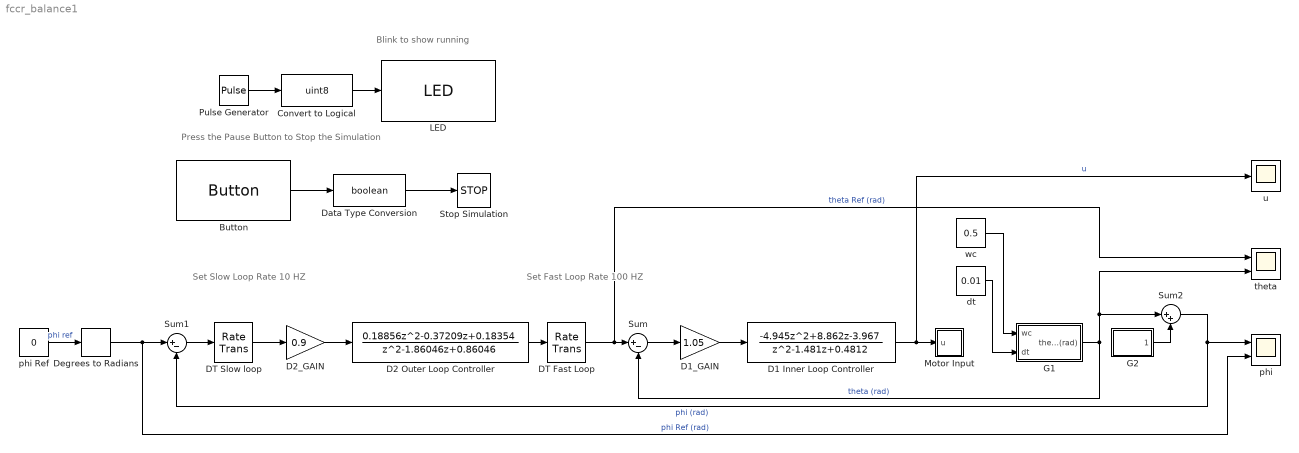
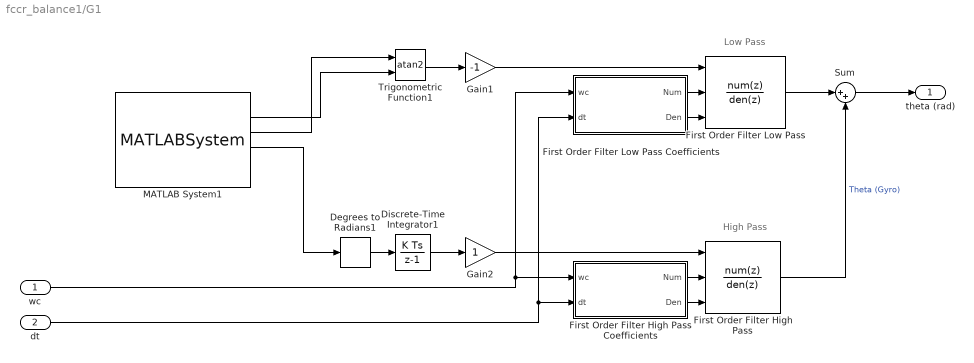
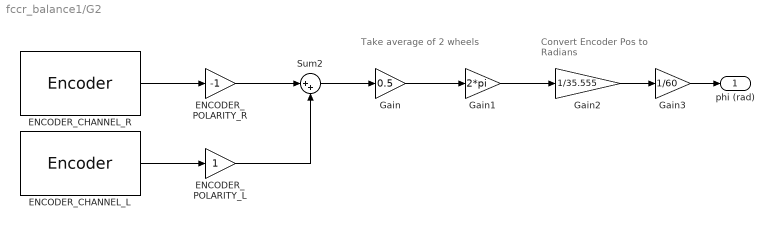
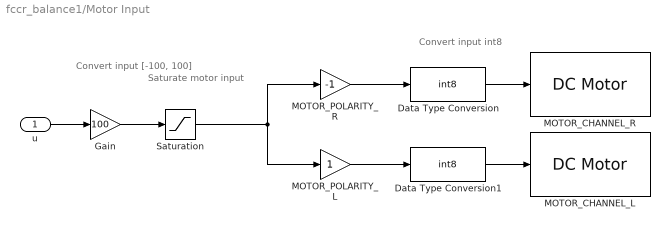
== matlab function fccr_balance1/G1/First Order Filter
High Pass Coefficients ==
function [Num, Den] = first_order_hp(wc,dt)
%#codegen
Num = [1 -1];
Den = [1 (wc*dt - 1)];

== matlab function fccr_balance1/G1/First Order Filter
Low Pass Coefficients ==
function [Num, Den] = first_order_lp(wc,dt)
%#codegen
Num = [0 wc*dt];
Den = [1 (wc*dt - 1)];

/*
 * fccr_balance1.c
 *
 * Academic License - for use in teaching, academic research, and meeting
 * course requirements at degree granting institutions only.  Not for
 * government, commercial, or other organizational use.
 *
 * Code generation for model "fccr_balance1".
 *
 * Model version              : 1.180
 * Simulink Coder version : 8.13 (R2017b) 24-Jul-2017
 * C source code generated on : Wed Nov 29 15:22:42 2017
 *
 * Target selection: ert.tlc
 * Note: GRT includes extra infrastructure and instrumentation for prototyping
 * Embedded hardware selection: ARM Compatible->ARM Cortex
 * Code generation objectives: Unspecified
 * Validation result: Not run
 */

#include "fccr_balance1.h"
#include "fccr_balance1_private.h"
#include "fccr_balance1_dt.h"

/* Block signals (auto storage) */
B_fccr_balance1_T fccr_balance1_B;

/* Block states (auto storage) */
DW_fccr_balance1_T fccr_balance1_DW;

/* Real-time model */
RT_MODEL_fccr_balance1_T fccr_balance1_M_;
RT_MODEL_fccr_balance1_T *const fccr_balance1_M = &fccr_balance1_M_;
static void rate_monotonic_scheduler(void);
real_T sMultiWord2Double(const uint32_T u1[], int32_T n1, int32_T e1)
{
  real_T y;
  int32_T i;
  int32_T exp_0;
  uint32_T u1i;
  uint32_T cb;
  y = 0.0;
  exp_0 = e1;
  if ((u1[n1 - 1] & 2147483648U) != 0U) {
    cb = 1U;
    for (i = 0; i < n1; i++) {
      u1i = ~u1[i];
      cb += u1i;
      y -= ldexp(cb, exp_0);
      cb = (uint32_T)(cb < u1i);
      exp_0 += 32;
    }
  } else {
    for (i = 0; i < n1; i++) {
      y += ldexp(u1[i], exp_0);
      exp_0 += 32;
    }
  }

  return y;
}

void MultiWordAdd(const uint32_T u1[], const uint32_T u2[], uint32_T y[],
                  int32_T n)
{
  uint32_T yi;
  uint32_T u1i;
  uint32_T carry = 0U;
  int32_T i;
  for (i = 0; i < n; i++) {
    u1i = u1[i];
    yi = (u1i + u2[i]) + carry;
    y[i] = yi;
    carry = carry != 0U ? (uint32_T)(yi <= u1i) : (uint32_T)(yi < u1i);
  }
}

void sMultiWordShr(const uint32_T u1[], int32_T n1, uint32_T n2, uint32_T y[],
                   int32_T n)
{
  int32_T nb;
  int32_T i;
  uint32_T ys;
  uint32_T yi;
  uint32_T u1i;
  int32_T nc;
  uint32_T nr;
  uint32_T nl;
  int32_T i1;
  nb = (int32_T)(n2 >> 5);
  i = 0;
  ys = (u1[n1 - 1] & 2147483648U) != 0U ? MAX_uint32_T : 0U;
  if (nb < n1) {
    nc = n + nb;
    if (nc > n1) {
      nc = n1;
    }

    nr = n2 - ((uint32_T)nb << 5);
    if (nr > 0U) {
      nl = 32U - nr;
      u1i = u1[nb];
      for (i1 = nb + 1; i1 < nc; i1++) {
        yi = u1i >> nr;
        u1i = u1[i1];
        y[i] = u1i << nl | yi;
        i++;
      }

      yi = u1i >> nr;
      u1i = nc < n1 ? u1[nc] : ys;
      y[i] = u1i << nl | yi;
      i++;
    } else {
      for (i1 = nb; i1 < nc; i1++) {
        y[i] = u1[i1];
        i++;
      }
    }
  }

  while (i < n) {
    y[i] = ys;
    i++;
  }
}

void sMultiWordMul(const uint32_T u1[], int32_T n1, const uint32_T u2[], int32_T
                   n2, uint32_T y[], int32_T n)
{
  int32_T i;
  int32_T j;
  int32_T k;
  int32_T nj;
  uint32_T u1i;
  uint32_T yk;
  uint32_T a1;
  uint32_T a0;
  uint32_T b1;
  uint32_T w10;
  uint32_T w01;
  uint32_T cb;
  boolean_T isNegative1;
  boolean_T isNegative2;
  uint32_T cb1;
  uint32_T cb2;
  isNegative1 = ((u1[n1 - 1] & 2147483648U) != 0U);
  isNegative2 = ((u2[n2 - 1] & 2147483648U) != 0U);
  cb1 = 1U;

  /* Initialize output to zero */
  for (k = 0; k < n; k++) {
    y[k] = 0U;
  }

  for (i = 0; i < n1; i++) {
    cb = 0U;
    u1i = u1[i];
    if (isNegative1) {
      u1i = ~u1i + cb1;
      cb1 = (uint32_T)(u1i < cb1);
    }

    a1 = u1i >> 16U;
    a0 = u1i & 65535U;
    cb2 = 1U;
    k = n - i;
    nj = n2 <= k ? n2 : k;
    k = i;
    for (j = 0; j < nj; j++) {
      yk = y[k];
      u1i = u2[j];
      if (isNegative2) {
        u1i = ~u1i + cb2;
        cb2 = (uint32_T)(u1i < cb2);
      }

      b1 = u1i >> 16U;
      u1i &= 65535U;
      w10 = a1 * u1i;
      w01 = a0 * b1;
      yk += cb;
      cb = (uint32_T)(yk < cb);
      u1i *= a0;
      yk += u1i;
      cb += (yk < u1i);
      u1i = w10 << 16U;
      yk += u1i;
      cb += (yk < u1i);
      u1i = w01 << 16U;
      yk += u1i;
      cb += (yk < u1i);
      y[k] = yk;
      cb += w10 >> 16U;
      cb += w01 >> 16U;
      cb += a1 * b1;
      k++;
    }

    if (k < n) {
      y[k] = cb;
    }
  }

  /* Apply sign */
  if (isNegative1 != isNegative2) {
    cb = 1U;
    for (k = 0; k < n; k++) {
      yk = ~y[k] + cb;
      y[k] = yk;
      cb = (uint32_T)(yk < cb);
    }
  }
}

/*
 * Set which subrates need to run this base step (base rate always runs).
 * This function must be called prior to calling the model step function
 * in order to "remember" which rates need to run this base step.  The
 * buffering of events allows for overlapping preemption.
 */
void fccr_balance1_SetEventsForThisBaseStep(boolean_T *eventFlags)
{
  /* Task runs when its counter is zero, computed via rtmStepTask macro */
  eventFlags[1] = ((boolean_T)rtmStepTask(fccr_balance1_M, 1));
}

/*
 *   This function updates active task flag for each subrate
 * and rate transition flags for tasks that exchange data.
 * The function assumes rate-monotonic multitasking scheduler.
 * The function must be called at model base rate so that
 * the generated code self-manages all its subrates and rate
 * transition flags.
 */
static void rate_monotonic_scheduler(void)
{
  /* To ensure a deterministic data transfer between two rates,
   * data is transferred at the priority of a fast task and the frequency
   * of the slow task.  The following flags indicate when the data transfer
   * happens.  That is, a rate interaction flag is set true when both rates
   * will run, and false otherwise.
   */

  /* tid 0 shares data with slower tid rate: 1 */
  fccr_balance1_M->Timing.RateInteraction.TID0_1 =
    (fccr_balance1_M->Timing.TaskCounters.TID[1] == 0);

  /* Compute which subrates run during the next base time step.  Subrates
   * are an integer multiple of the base rate counter.  Therefore, the subtask
   * counter is reset when it reaches its limit (zero means run).
   */
  (fccr_balance1_M->Timing.TaskCounters.TID[1])++;
  if ((fccr_balance1_M->Timing.TaskCounters.TID[1]) > 9) {/* Sample time: [0.1s, 0.0s] */
    fccr_balance1_M->Timing.TaskCounters.TID[1] = 0;
  }
}

real_T rt_atan2d_snf(real_T u0, real_T u1)
{
  real_T y;
  int32_T u0_0;
  int32_T u1_0;
  if (rtIsNaN(u0) || rtIsNaN(u1)) {
    y = (rtNaN);
  } else if (rtIsInf(u0) && rtIsInf(u1)) {
    if (u0 > 0.0) {
      u0_0 = 1;
    } else {
      u0_0 = -1;
    }

    if (u1 > 0.0) {
      u1_0 = 1;
    } else {
      u1_0 = -1;
    }

    y = atan2(u0_0, u1_0);
  } else if (u1 == 0.0) {
    if (u0 > 0.0) {
      y = RT_PI / 2.0;
    } else if (u0 < 0.0) {
      y = -(RT_PI / 2.0);
    } else {
      y = 0.0;
    }
  } else {
    y = atan2(u0, u1);
  }

  return y;
}

/* Model step function for TID0 */
void fccr_balance1_step0(void)         /* Sample time: [0.01s, 0.0s] */
{
  int32_T k;
  int32_T rtb_ENCODER_CHANNEL_L_0;
  boolean_T p;
  boolean_T p_0;
  real_T tmp;
  int64m_T tmp_0;
  int64m_T tmp_1;
  int64m_T tmp_2;
  uint32_T tmp_3;
  uint32_T tmp_4;
  int8_T rtb_Sum1_0;

  {                                    /* Sample time: [0.01s, 0.0s] */
    rate_monotonic_scheduler();
  }

  /* RateTransition: '<Root>/DT Fast Loop' */
  if (fccr_balance1_M->Timing.RateInteraction.TID0_1) {
    fccr_balance1_B.thetaRefrad = fccr_balance1_DW.DTFastLoop_Buffer0;
  }

  /* End of RateTransition: '<Root>/DT Fast Loop' */

  /* Start for MATLABSystem: '<S2>/MATLAB System1' */
  p = false;
  p_0 = true;
  if (!(fccr_balance1_DW.obj_e.SampleTime ==
        fccr_balance1_P.MATLABSystem1_SampleTime)) {
    p_0 = false;
  }

  if (p_0) {
    p = true;
  }

  if (!p) {
    fccr_balance1_DW.obj_e.SampleTime = fccr_balance1_P.MATLABSystem1_SampleTime;
  }

  fccr_read_accel_x();
  fccr_balance1_B.FirstOrderFilterLowPass_tmp = fccr_read_accel_y();
  fccr_balance1_B.Gain1_m = fccr_read_accel_z();
  fccr_balance1_B.b_varargout_4 = fccr_read_gyro_x();
  fccr_read_gyro_y();
  fccr_read_gyro_z();

  /* Gain: '<S2>/Gain1' incorporates:
   *  MATLABSystem: '<S2>/MATLAB System1'
   *  MATLABSystem: '<S2>/MATLAB System1'
   *  Trigonometry: '<S2>/Trigonometric Function1'
   */
  fccr_balance1_B.Gain1_m = fccr_balance1_P.Gain1_Gain * rt_atan2d_snf
    (fccr_balance1_B.Gain1_m, fccr_balance1_B.FirstOrderFilterLowPass_tmp);

  /* MATLAB Function: '<S2>/First Order Filter Low Pass Coefficients' incorporates:
   *  Constant: '<Root>/dt'
   *  Constant: '<Root>/wc'
   */
  /* MATLAB Function 'G1/First Order Filter Low Pass Coefficients': '<S7>:1' */
  /* '<S7>:1:3' */
  fccr_balance1_B.Num[0] = 0.0;
  fccr_balance1_B.FirstOrderFilterLowPass_tmp = fccr_balance1_P.wc_Value *
    fccr_balance1_P.dt_Value;
  fccr_balance1_B.Num[1] = fccr_balance1_B.FirstOrderFilterLowPass_tmp;

  /* '<S7>:1:4' */
  fccr_balance1_B.Den[0] = 1.0;
  fccr_balance1_B.Den[1] = fccr_balance1_B.FirstOrderFilterLowPass_tmp - 1.0;

  /* DiscreteTransferFcn: '<S2>/First Order Filter Low Pass' */
  fccr_balance1_B.FirstOrderFilterLowPass_tmp = fccr_balance1_B.Gain1_m -
    fccr_balance1_B.Den[1] * fccr_balance1_DW.FirstOrderFilterLowPass_states;

  /* MATLAB Function: '<S2>/First Order Filter High Pass Coefficients' incorporates:
   *  Constant: '<Root>/dt'
   *  Constant: '<Root>/wc'
   */
  /* MATLAB Function 'G1/First Order Filter High Pass Coefficients': '<S6>:1' */
  /* '<S6>:1:3' */
  fccr_balance1_B.Num_i[0] = 1.0;
  fccr_balance1_B.Num_i[1] = -1.0;

  /* '<S6>:1:4' */
  fccr_balance1_B.Den_i[0] = 1.0;
  fccr_balance1_B.Den_i[1] = fccr_balance1_P.wc_Value * fccr_balance1_P.dt_Value
    - 1.0;

  /* DiscreteTransferFcn: '<S2>/First Order Filter High Pass' incorporates:
   *  DiscreteIntegrator: '<S2>/Discrete-Time Integrator1'
   *  Gain: '<S2>/Gain2'
   */
  fccr_balance1_B.Gain1_m = fccr_balance1_P.Gain2_Gain *
    fccr_balance1_DW.DiscreteTimeIntegrator1_DSTATE - fccr_balance1_B.Den_i[1] *
    fccr_balance1_DW.FirstOrderFilterHighPass_states;
  fccr_balance1_B.Sum1 = fccr_balance1_B.Num_i[0] * fccr_balance1_B.Gain1_m;
  fccr_balance1_B.Sum1 += fccr_balance1_B.Num_i[1] *
    fccr_balance1_DW.FirstOrderFilterHighPass_states;

  /* Sum: '<S2>/Sum' incorporates:
   *  DiscreteTransferFcn: '<S2>/First Order Filter Low Pass'
   */
  fccr_balance1_B.Sum = (fccr_balance1_B.Num[0] *
    fccr_balance1_B.FirstOrderFilterLowPass_tmp + fccr_balance1_B.Num[1] *
    fccr_balance1_DW.FirstOrderFilterLowPass_states) + fccr_balance1_B.Sum1;

  /* Gain: '<Root>/D1_GAIN' incorporates:
   *  Sum: '<Root>/Sum'
   */
  fccr_balance1_B.Sum1 = (fccr_balance1_B.thetaRefrad - fccr_balance1_B.Sum) *
    fccr_balance1_P.D1_GAIN_Gain;

  /* DiscreteTransferFcn: '<Root>/D1 Inner Loop Controller' */
  fccr_balance1_B.MOTOR_POLARITY_L = ((fccr_balance1_B.Sum1 -
    fccr_balance1_P.D1InnerLoopController_DenCoef[1] *
    fccr_balance1_DW.D1InnerLoopController_states[0]) -
    fccr_balance1_P.D1InnerLoopController_DenCoef[2] *
    fccr_balance1_DW.D1InnerLoopController_states[1]) /
    fccr_balance1_P.D1InnerLoopController_DenCoef[0];
  fccr_balance1_B.u = (fccr_balance1_P.D1InnerLoopController_NumCoef[0] *
                       fccr_balance1_B.MOTOR_POLARITY_L +
                       fccr_balance1_P.D1InnerLoopController_NumCoef[1] *
                       fccr_balance1_DW.D1InnerLoopController_states[0]) +
    fccr_balance1_P.D1InnerLoopController_NumCoef[2] *
    fccr_balance1_DW.D1InnerLoopController_states[1];

  /* Gain: '<S4>/Gain' */
  fccr_balance1_B.Sum1 = fccr_balance1_P.Gain_Gain * fccr_balance1_B.u;

  /* Saturate: '<S4>/Saturation' */
  if (fccr_balance1_B.Sum1 > fccr_balance1_P.Saturation_UpperSat) {
    fccr_balance1_B.Sum1 = fccr_balance1_P.Saturation_UpperSat;
  } else {
    if (fccr_balance1_B.Sum1 < fccr_balance1_P.Saturation_LowerSat) {
      fccr_balance1_B.Sum1 = fccr_balance1_P.Saturation_LowerSat;
    }
  }

  /* End of Saturate: '<S4>/Saturation' */

  /* DataTypeConversion: '<S4>/Data Type Conversion1' incorporates:
   *  Gain: '<S4>/MOTOR_POLARITY_L'
   */
  tmp = fccr_balance1_P.MOTOR_POLARITY_L_Gain * fccr_balance1_B.Sum1;
  if (tmp < 128.0) {
    if (tmp >= -128.0) {
      rtb_Sum1_0 = (int8_T)tmp;
    } else {
      rtb_Sum1_0 = MIN_int8_T;
    }
  } else {
    rtb_Sum1_0 = MAX_int8_T;
  }

  /* End of DataTypeConversion: '<S4>/Data Type Conversion1' */

  /* Start for MATLABSystem: '<S4>/MOTOR_CHANNEL_L' */
  MW_set_motor(3U, rtb_Sum1_0, 2U);

  /* Gain: '<S4>/MOTOR_POLARITY_R' */
  fccr_balance1_B.Sum1 *= fccr_balance1_P.MOTOR_POLARITY_R_Gain;

  /* DataTypeConversion: '<S4>/Data Type Conversion' */
  if (fccr_balance1_B.Sum1 < 128.0) {
    if (fccr_balance1_B.Sum1 >= -128.0) {
      rtb_Sum1_0 = (int8_T)fccr_balance1_B.Sum1;
    } else {
      rtb_Sum1_0 = MIN_int8_T;
    }
  } else {
    rtb_Sum1_0 = MAX_int8_T;
  }

  /* End of DataTypeConversion: '<S4>/Data Type Conversion' */

  /* Start for MATLABSystem: '<S4>/MOTOR_CHANNEL_R' */
  MW_set_motor(2U, rtb_Sum1_0, 2U);

  /* Start for MATLABSystem: '<S3>/ENCODER_CHANNEL_R' */
  p = false;
  p_0 = true;
  if (!(fccr_balance1_DW.obj_i.SampleTime ==
        fccr_balance1_P.ENCODER_CHANNEL_R_SampleTime)) {
    p_0 = false;
  }

  if (p_0) {
    p = true;
  }

  if (!p) {
    fccr_balance1_DW.obj_i.SampleTime =
      fccr_balance1_P.ENCODER_CHANNEL_R_SampleTime;
  }

  /* MATLABSystem: '<S3>/ENCODER_CHANNEL_R' */
  k = getEncoderValue(2U, 1U, 0);

  /* Start for MATLABSystem: '<S3>/ENCODER_CHANNEL_L' */
  p = false;
  p_0 = true;
  if (!(fccr_balance1_DW.obj_l.SampleTime ==
        fccr_balance1_P.ENCODER_CHANNEL_L_SampleTime)) {
    p_0 = false;
  }

  if (p_0) {
    p = true;
  }

  if (!p) {
    fccr_balance1_DW.obj_l.SampleTime =
      fccr_balance1_P.ENCODER_CHANNEL_L_SampleTime;
  }

  /* MATLABSystem: '<S3>/ENCODER_CHANNEL_L' */
  rtb_ENCODER_CHANNEL_L_0 = getEncoderValue(3U, 1U, 0);

  /* Gain: '<S3>/ENCODER_POLARITY_R' incorporates:
   *  MATLABSystem: '<S3>/ENCODER_CHANNEL_R'
   */
  tmp_3 = (uint32_T)fccr_balance1_P.ENCODER_POLARITY_R_Gain;
  tmp_4 = (uint32_T)k;
  sMultiWordMul(&tmp_3, 1, &tmp_4, 1, &tmp_2.chunks[0U], 2);

  /* Sum: '<S3>/Sum2' */
  sMultiWordShr(&tmp_2.chunks[0U], 2, 1U, &tmp_1.chunks[0U], 2);

  /* Gain: '<S3>/ENCODER_POLARITY_L' incorporates:
   *  MATLABSystem: '<S3>/ENCODER_CHANNEL_L'
   */
  tmp_3 = (uint32_T)fccr_balance1_P.ENCODER_POLARITY_L_Gain;
  tmp_4 = (uint32_T)rtb_ENCODER_CHANNEL_L_0;
  sMultiWordMul(&tmp_3, 1, &tmp_4, 1, &tmp_2.chunks[0U], 2);

  /* Sum: '<S3>/Sum2' */
  MultiWordAdd(&tmp_1.chunks[0U], &tmp_2.chunks[0U], &tmp_0.chunks[0U], 2);

  /* Gain: '<S3>/Gain' */
  fccr_balance1_B.Sum1 = sMultiWord2Double(&fccr_balance1_P.Gain_Gain_p.chunks
    [0U], 2, 0) * 1.0842021724855044E-19 * (sMultiWord2Double(&tmp_0.chunks[0U],
    2, 0) * 9.3132257461547852E-10);

  /* Sum: '<Root>/Sum2' incorporates:
   *  Gain: '<S3>/Gain1'
   *  Gain: '<S3>/Gain2'
   *  Gain: '<S3>/Gain3'
   */
  fccr_balance1_B.phirad = fccr_balance1_P.Gain1_Gain_i * fccr_balance1_B.Sum1 *
    fccr_balance1_P.Gain2_Gain_e * fccr_balance1_P.Gain3_Gain +
    fccr_balance1_B.Sum;

  /* Gain: '<S1>/Gain1' incorporates:
   *  Constant: '<Root>/phi Ref'
   */
  fccr_balance1_B.Gain1 = fccr_balance1_P.Gain1_Gain_n *
    fccr_balance1_P.phiRef_Value;

  /* Sum: '<Root>/Sum1' */
  fccr_balance1_B.Sum1 = fccr_balance1_B.Gain1 - fccr_balance1_B.phirad;

  /* RateTransition: '<Root>/DT Slow loop' */
  if (fccr_balance1_M->Timing.RateInteraction.TID0_1) {
    fccr_balance1_B.DTSlowloop = fccr_balance1_B.Sum1;
  }

  /* End of RateTransition: '<Root>/DT Slow loop' */

  /* Update for DiscreteTransferFcn: '<S2>/First Order Filter Low Pass' */
  fccr_balance1_DW.FirstOrderFilterLowPass_states =
    fccr_balance1_B.FirstOrderFilterLowPass_tmp;

  /* Update for DiscreteIntegrator: '<S2>/Discrete-Time Integrator1' incorporates:
   *  Gain: '<S5>/Gain1'
   *  MATLABSystem: '<S2>/MATLAB System1'
   *  MATLABSystem: '<S2>/MATLAB System1'
   */
  fccr_balance1_DW.DiscreteTimeIntegrator1_DSTATE +=
    fccr_balance1_P.Gain1_Gain_j * fccr_balance1_B.b_varargout_4 *
    fccr_balance1_P.DiscreteTimeIntegrator1_gainval;

  /* Update for DiscreteTransferFcn: '<S2>/First Order Filter High Pass' */
  fccr_balance1_DW.FirstOrderFilterHighPass_states = fccr_balance1_B.Gain1_m;

  /* Update for DiscreteTransferFcn: '<Root>/D1 Inner Loop Controller' */
  fccr_balance1_DW.D1InnerLoopController_states[1] =
    fccr_balance1_DW.D1InnerLoopController_states[0];
  fccr_balance1_DW.D1InnerLoopController_states[0] =
    fccr_balance1_B.MOTOR_POLARITY_L;

  /* External mode */
  rtExtModeUploadCheckTrigger(2);
  rtExtModeUpload(0, fccr_balance1_M->Timing.taskTime0);

  /* signal main to stop simulation */
  {                                    /* Sample time: [0.01s, 0.0s] */
    if ((rtmGetTFinal(fccr_balance1_M)!=-1) &&
        !((rtmGetTFinal(fccr_balance1_M)-fccr_balance1_M->Timing.taskTime0) >
          fccr_balance1_M->Timing.taskTime0 * (DBL_EPSILON))) {
      rtmSetErrorStatus(fccr_balance1_M, "Simulation finished");
    }

    if (rtmGetStopRequested(fccr_balance1_M)) {
      rtmSetErrorStatus(fccr_balance1_M, "Simulation finished");
    }
  }

  /* Update absolute time */
  /* The "clockTick0" counts the number of times the code of this task has
   * been executed. The absolute time is the multiplication of "clockTick0"
   * and "Timing.stepSize0". Size of "clockTick0" ensures timer will not
   * overflow during the application lifespan selected.
   * Timer of this task consists of two 32 bit unsigned integers.
   * The two integers represent the low bits Timing.clockTick0 and the high bits
   * Timing.clockTickH0. When the low bit overflows to 0, the high bits increment.
   */
  if (!(++fccr_balance1_M->Timing.clockTick0)) {
    ++fccr_balance1_M->Timing.clockTickH0;
  }

  fccr_balance1_M->Timing.taskTime0 = fccr_balance1_M->Timing.clockTick0 *
    fccr_balance1_M->Timing.stepSize0 + fccr_balance1_M->Timing.clockTickH0 *
    fccr_balance1_M->Timing.stepSize0 * 4294967296.0;
}

/* Model step function for TID1 */
void fccr_balance1_step1(void)         /* Sample time: [0.1s, 0.0s] */
{
  uint8_T rtb_Button_0;
  boolean_T p;
  boolean_T p_0;
  real_T rtb_D2OuterLoopController;
  real_T rtb_PulseGenerator;

  /* Start for MATLABSystem: '<Root>/Button' */
  p = false;
  p_0 = true;
  if (!(fccr_balance1_DW.obj_b.SampleTime == fccr_balance1_P.Button_SampleTime))
  {
    p_0 = false;
  }

  if (p_0) {
    p = true;
  }

  if (!p) {
    fccr_balance1_DW.obj_b.SampleTime = fccr_balance1_P.Button_SampleTime;
  }

  /* MATLABSystem: '<Root>/Button' */
  rtb_Button_0 = rc_get_pause_button();

  /* Stop: '<Root>/Stop Simulation' incorporates:
   *  DataTypeConversion: '<Root>/Data Type Conversion'
   *  MATLABSystem: '<Root>/Button'
   */
  if (rtb_Button_0 != 0) {
    rtmSetStopRequested(fccr_balance1_M, 1);
  }

  /* End of Stop: '<Root>/Stop Simulation' */

  /* DiscretePulseGenerator: '<Root>/Pulse Generator' */
  rtb_PulseGenerator = (fccr_balance1_DW.clockTickCounter <
                        fccr_balance1_P.PulseGenerator_Duty) &&
    (fccr_balance1_DW.clockTickCounter >= 0) ?
    fccr_balance1_P.PulseGenerator_Amp : 0.0;
  if (fccr_balance1_DW.clockTickCounter >= fccr_balance1_P.PulseGenerator_Period
      - 1.0) {
    fccr_balance1_DW.clockTickCounter = 0;
  } else {
    fccr_balance1_DW.clockTickCounter++;
  }

  /* End of DiscretePulseGenerator: '<Root>/Pulse Generator' */

  /* DataTypeConversion: '<Root>/Convert to Logical' */
  rtb_PulseGenerator = floor(rtb_PulseGenerator);
  if (rtIsNaN(rtb_PulseGenerator) || rtIsInf(rtb_PulseGenerator)) {
    rtb_PulseGenerator = 0.0;
  } else {
    rtb_PulseGenerator = fmod(rtb_PulseGenerator, 256.0);
  }

  /* Start for MATLABSystem: '<Root>/LED' incorporates:
   *  DataTypeConversion: '<Root>/Convert to Logical'
   */
  rc_set_led(0U, (uint8_T)(rtb_PulseGenerator < 0.0 ? (int32_T)(uint8_T)-(int8_T)
              (uint8_T)-rtb_PulseGenerator : (int32_T)(uint8_T)
              rtb_PulseGenerator));

  /* DiscreteTransferFcn: '<Root>/D2 Outer Loop Controller' incorporates:
   *  Gain: '<Root>/D2_GAIN'
   */
  rtb_PulseGenerator = ((fccr_balance1_P.D2_GAIN_Gain *
    fccr_balance1_B.DTSlowloop - fccr_balance1_P.D2OuterLoopController_DenCoef[1]
    * fccr_balance1_DW.D2OuterLoopController_states[0]) -
                        fccr_balance1_P.D2OuterLoopController_DenCoef[2] *
                        fccr_balance1_DW.D2OuterLoopController_states[1]) /
    fccr_balance1_P.D2OuterLoopController_DenCoef[0];
  rtb_D2OuterLoopController = fccr_balance1_P.D2OuterLoopController_NumCoef[0] *
    rtb_PulseGenerator;
  rtb_D2OuterLoopController += fccr_balance1_P.D2OuterLoopController_NumCoef[1] *
    fccr_balance1_DW.D2OuterLoopController_states[0];
  rtb_D2OuterLoopController += fccr_balance1_P.D2OuterLoopController_NumCoef[2] *
    fccr_balance1_DW.D2OuterLoopController_states[1];

  /* Update for RateTransition: '<Root>/DT Fast Loop' */
  fccr_balance1_DW.DTFastLoop_Buffer0 = rtb_D2OuterLoopController;

  /* Update for DiscreteTransferFcn: '<Root>/D2 Outer Loop Controller' */
  fccr_balance1_DW.D2OuterLoopController_states[1] =
    fccr_balance1_DW.D2OuterLoopController_states[0];
  fccr_balance1_DW.D2OuterLoopController_states[0] = rtb_PulseGenerator;
  rtExtModeUpload(1, (((fccr_balance1_M->Timing.clockTick1+
                        fccr_balance1_M->Timing.clockTickH1* 4294967296.0)) *
                      0.1));

  /* Update absolute time */
  /* The "clockTick1" counts the number of times the code of this task has
   * been executed. The resolution of this integer timer is 0.1, which is the step size
   * of the task. Size of "clockTick1" ensures timer will not overflow during the
   * application lifespan selected.
   * Timer of this task consists of two 32 bit unsigned integers.
   * The two integers represent the low bits Timing.clockTick1 and the high bits
   * Timing.clockTickH1. When the low bit overflows to 0, the high bits increment.
   */
  fccr_balance1_M->Timing.clockTick1++;
  if (!fccr_balance1_M->Timing.clockTick1) {
    fccr_balance1_M->Timing.clockTickH1++;
  }
}

/* Model step wrapper function for compatibility with a static main program */
void fccr_balance1_step(int_T tid)
{
  switch (tid) {
   case 0 :
    fccr_balance1_step0();
    break;

   case 1 :
    fccr_balance1_step1();
    break;

   default :
    break;
  }
}
